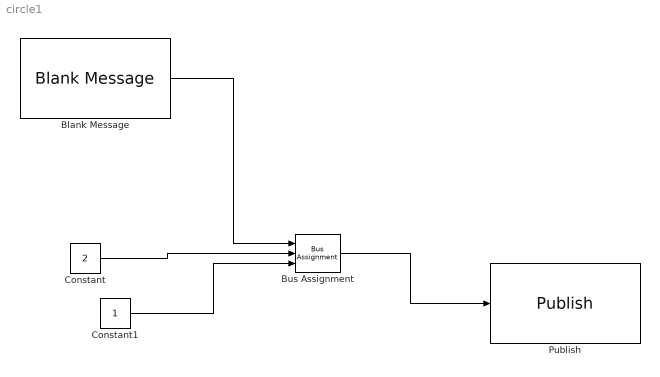
//
// Academic License - for use in teaching, academic research, and meeting
// course requirements at degree granting institutions only.  Not for
// government, commercial, or other organizational use.
//
// File: circle1.cpp
//
// Code generated for Simulink model 'circle1'.
//
// Model version                  : 1.1
// Simulink Coder version         : 24.2 (R2024b) 21-Jun-2024
// C/C++ source code generated on : Fri Jan 10 17:44:42 2025
//
// Target selection: ert.tlc
// Embedded hardware selection: Intel->x86-64 (Linux 64)
// Code generation objectives: Unspecified
// Validation result: Not run
//
#include "circle1.h"
#include "circle1_types.h"
#include <string.h>
#include "rmw/qos_profiles.h"
#include "rtwtypes.h"
#include <stddef.h>

void circle1::circle1_Publisher_setupImpl(const ros_slros2_internal_block_Pub_T *
  obj)
{
  rmw_qos_profile_t qos_profile;
  sJ4ih70VmKcvCeguWN0mNVF deadline;
  sJ4ih70VmKcvCeguWN0mNVF lifespan;
  sJ4ih70VmKcvCeguWN0mNVF liveliness_lease_duration;
  static const char_T b_zeroDelimTopic[17] = "/turtle1/cmd_vel";
  qos_profile = rmw_qos_profile_default;

  // Start for MATLABSystem: '<S2>/SinkBlock'
  deadline.sec = 0.0;
  deadline.nsec = 0.0;
  lifespan.sec = 0.0;
  lifespan.nsec = 0.0;
  liveliness_lease_duration.sec = 0.0;
  liveliness_lease_duration.nsec = 0.0;
  SET_QOS_VALUES(qos_profile, RMW_QOS_POLICY_HISTORY_KEEP_LAST, (size_t)1.0,
                 RMW_QOS_POLICY_DURABILITY_VOLATILE,
                 RMW_QOS_POLICY_RELIABILITY_RELIABLE, deadline, lifespan,
                 RMW_QOS_POLICY_LIVELINESS_AUTOMATIC, liveliness_lease_duration,
                 (bool)obj->QOSAvoidROSNamespaceConventions);
  for (int32_T i = 0; i < 17; i++) {
    // Start for MATLABSystem: '<S2>/SinkBlock'
    circle1_B.b_zeroDelimTopic[i] = b_zeroDelimTopic[i];
  }

  Pub_untitled_3.createPublisher(&circle1_B.b_zeroDelimTopic[0], qos_profile);
}

// Model step function
void circle1::step()
{
  SL_Bus_geometry_msgs_Twist rtb_BusAssignment;

  // BusAssignment: '<Root>/Bus Assignment' incorporates:
  //   Constant: '<Root>/Constant'
  //   Constant: '<Root>/Constant1'

  memset(&rtb_BusAssignment, 0, sizeof(SL_Bus_geometry_msgs_Twist));
  rtb_BusAssignment.linear.x = 2.0;
  rtb_BusAssignment.angular.z = 1.0;

  // MATLABSystem: '<S2>/SinkBlock'
  Pub_untitled_3.publish(&rtb_BusAssignment);
}
